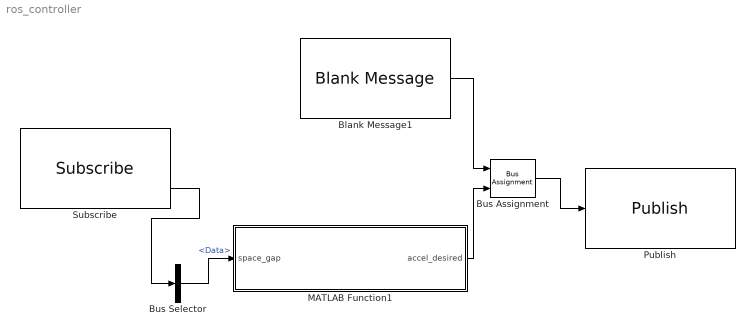
== matlab function ros_controller/MATLAB Function1 ==
function accel_desired = constant_space_gap(space_gap)

% tau=0.1;
s_desired=5;
alpha=0.1;

accel_desired = alpha*(space_gap-s_desired);

/*
 * ros_controller.cpp
 *
 * Academic License - for use in teaching, academic research, and meeting
 * course requirements at degree granting institutions only.  Not for
 * government, commercial, or other organizational use.
 *
 * Code generation for model "ros_controller".
 *
 * Model version              : 1.6
 * Simulink Coder version : 24.1 (R2024a) 19-Nov-2023
 * C++ source code generated on : Thu Oct 24 12:21:30 2024
 *
 * Target selection: ert.tlc
 * Note: GRT includes extra infrastructure and instrumentation for prototyping
 * Embedded hardware selection: Generic->Unspecified (assume 32-bit Generic)
 * Code generation objectives: Unspecified
 * Validation result: Not run
 */

#include "ros_controller.h"
#include "rtwtypes.h"
#include "ros_controller_types.h"
#include <string.h>

/* Block signals (default storage) */
B_ros_controller_T ros_controller_B;

/* Block states (default storage) */
DW_ros_controller_T ros_controller_DW;

/* Real-time model */
RT_MODEL_ros_controller_T ros_controller_M_ = RT_MODEL_ros_controller_T();
RT_MODEL_ros_controller_T *const ros_controller_M = &ros_controller_M_;

/* Model step function */
void ros_controller_step(void)
{
  SL_Bus_ros_controller_std_msgs_Float64 rtb_BusAssignment;
  SL_Bus_ros_controller_std_msgs_Float64 rtb_SourceBlock_o2_0;
  boolean_T b_varargout_1;

  /* Outputs for Atomic SubSystem: '<Root>/Subscribe' */
  /* MATLABSystem: '<S4>/SourceBlock' */
  b_varargout_1 = Sub_ros_controller_13.getLatestMessage(&rtb_SourceBlock_o2_0);

  /* Outputs for Enabled SubSystem: '<S4>/Enabled Subsystem' incorporates:
   *  EnablePort: '<S5>/Enable'
   */
  /* Start for MATLABSystem: '<S4>/SourceBlock' */
  if (b_varargout_1) {
    /* SignalConversion generated from: '<S5>/In1' */
    ros_controller_B.In1 = rtb_SourceBlock_o2_0;
  }

  /* End of Start for MATLABSystem: '<S4>/SourceBlock' */
  /* End of Outputs for SubSystem: '<S4>/Enabled Subsystem' */
  /* End of Outputs for SubSystem: '<Root>/Subscribe' */

  /* BusAssignment: '<Root>/Bus Assignment' incorporates:
   *  MATLAB Function: '<Root>/MATLAB Function1'
   */
  rtb_BusAssignment.Data = (ros_controller_B.In1.Data - 5.0) * 0.1;

  /* Outputs for Atomic SubSystem: '<Root>/Publish' */
  /* MATLABSystem: '<S3>/SinkBlock' */
  Pub_ros_controller_11.publish(&rtb_BusAssignment);

  /* End of Outputs for SubSystem: '<Root>/Publish' */
}
